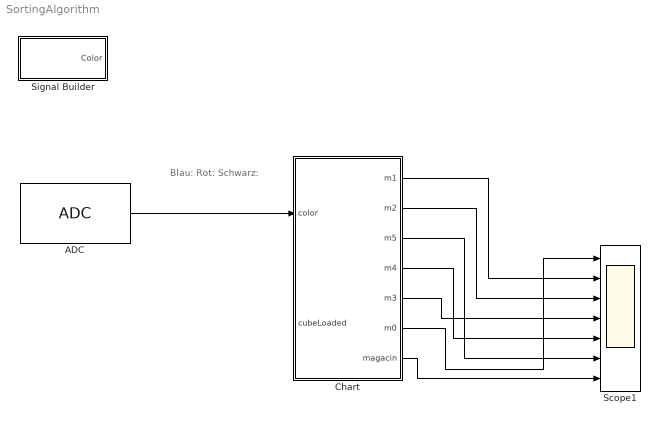
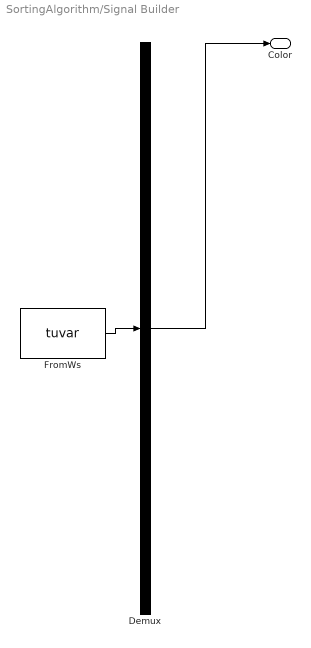
== stateflow chart SortingAlgorithm/Chart ==
  state setupVariable
    m0 = 0;
    m1 = 0;
    m2 = 0;
    m3 = 0;
    m4 = 0;
    m5 = 0;
    m6 = 0;
    magacin = 0;
    m0_LC = 0;
    m1_LC = 0;
    m2_LC = 0;
    m3_LC = 0;
    m4_LC = 0;
    m5_LC = 0;
    m6_LC = 0;
    magacin = -1;
  note: Motor fahre Position Mitte an
  state noCubeLoaded
  note: 1 ist Code for Blue, 2 is Code for Red, 3 is Code for Black, 0 is empty
  state cubeLoaded
  state findPlaceForRed1
    m1 = m1 + 1;
    magacin = 2;
  state RedCube
    magacin = findPlaceForRed();
  state BlueCube
    magacin = findPlaceForBlue()
  setupVariable -> noCubeLoaded
  (default) -> setupVariable
  BlueCube -> noCubeLoaded
  RedCube -> noCubeLoaded
  noCubeLoaded -> cubeLoaded
  cubeLoaded -> findPlaceForRed1 [order 3] : [(color > 2000 & color < 2200)]
  cubeLoaded -> RedCube [order 2] : [(color > 150 & color < 250)]
  cubeLoaded -> BlueCube [order 1] : [(color > 1800 & color < 1950) ]
  data: magacinOut function_output; magacinOut function_output; color input; cubeLoaded input; m6 local; m0_LC local; m3_LC local; m2_LC local; m5_LC local; m1_LC local; m6_LC local; m4_LC local; m1 output; m2 output; m5 output; m4 output; m3 output; m0 output; magacin output
  function magacinOut  = findPlaceForRed:
    | function magacinOut  = findPlaceForRed
    | 
    | %1 ist Code for Blue, 2 is Code for Red, 3 is Code for Black, 0 is empty
    | if((m1 == 0 || m1_LC == 1)&& m1 < 5) 
    |             magacinOut = 1;
    |             m1 = m1 + 1;
    |             m1_LC = 2;
    | elseif (m2 == 0 || (m2_LC == 1 && m2 < 5))
    |             magacinOut = 2;
    |             m2 = m2 + 1; 
    |             m2_LC = 2;
    | elseif (m0 < 5 && m1 > 0)
    |             magacinOut = 0;
    |             m0 = m0 + 1;
    |             m0_LC = 2;
    | else 
    |             magacinOut = 3;
    |             m3 = m3 + 1;
    |             m3_LC = 2;
    | end
  function magacinOut  = findPlaceForBlue:
    | function magacinOut  = findPlaceForBlue
    | 
    | %1 ist Code for Blue, 2 is Code for Red, 3 is Code for Black, 0 is empty
    | if(m0 == 0) 
    |             magacinOut = 0;
    |             m0 = m0 + 1;
    |             m0_LC = 1;
    | elseif (m2 == 0) || (m2_LC == 2 && m2 < 5)
    |             magacinOut = 2;
    |             m2 = m2 + 1; 
    |             m2_LC = 1;
    | elseif (m1_LC == 2 && m1 < 5)
    |             magacinOut = 1;
    |             m0 = m0 + 1;
    |             m0_LC = 1;
    | elseif m3 < 5
    |             magacinOut = 3;
    |             m3 = m3 + 1;
    | elseif m4 < 5
    |             magacinOut = 4;
    |             m4 = m4 + 1;
    | else
    |             magacinOut = 5;
    |             m5 = m5 + 1;
    | end

/*
 * Academic License - for use in teaching, academic research, and meeting
 * course requirements at degree granting institutions only.  Not for
 * government, commercial, or other organizational use.
 *
 * File: SortingAlgorithm.c
 *
 * Code generated for Simulink model 'SortingAlgorithm'.
 *
 * Model version                  : 1.16
 * Simulink Coder version         : 9.0 (R2018b) 24-May-2018
 * C/C++ source code generated on : Thu Dec 10 17:39:51 2020
 *
 * Target selection: ert.tlc
 * Embedded hardware selection: Texas Instruments->C2000
 * Code generation objectives: Unspecified
 * Validation result: Not run
 */

#include "SortingAlgorithm.h"
#include "SortingAlgorithm_private.h"
#define SortingAlgo_IN_findPlaceForRed1 (4U)
#define SortingAlgor_IN_NO_ACTIVE_CHILD (0U)
#define SortingAlgorit_IN_setupVariable (6U)
#define SortingAlgorith_IN_noCubeLoaded (5U)
#define SortingAlgorithm_IN_BlueCube   (1U)
#define SortingAlgorithm_IN_RedCube    (2U)
#define SortingAlgorithm_IN_cubeLoaded (3U)

/* Block signals (default storage) */
B_SortingAlgorithm_T SortingAlgorithm_B;

/* Block states (default storage) */
DW_SortingAlgorithm_T SortingAlgorithm_DW;

/* Real-time model */
RT_MODEL_SortingAlgorithm_T SortingAlgorithm_M_;
RT_MODEL_SortingAlgorithm_T *const SortingAlgorithm_M = &SortingAlgorithm_M_;

/* Forward declaration for local functions */
static real_T SortingAlgorith_findPlaceForRed(void);
static real_T SortingAlgorit_findPlaceForBlue(void);
static uint16_T adcInitFlag = 0;

/* Function for Chart: '<Root>/Chart' */
static real_T SortingAlgorith_findPlaceForRed(void)
{
  real_T magacinOut;
  if (((SortingAlgorithm_B.m1 == 0.0) || (SortingAlgorithm_DW.m1_LC == 1.0)) &&
      (SortingAlgorithm_B.m1 < 5.0)) {
    magacinOut = 1.0;
    SortingAlgorithm_B.m1++;
    SortingAlgorithm_DW.m1_LC = 2.0;
  } else if ((SortingAlgorithm_B.m2 == 0.0) || ((SortingAlgorithm_DW.m2_LC ==
               1.0) && (SortingAlgorithm_B.m2 < 5.0))) {
    magacinOut = 2.0;
    SortingAlgorithm_B.m2++;
    SortingAlgorithm_DW.m2_LC = 2.0;
  } else if ((SortingAlgorithm_B.m0 < 5.0) && (SortingAlgorithm_B.m1 > 0.0)) {
    magacinOut = 0.0;
    SortingAlgorithm_B.m0++;
  } else {
    magacinOut = 3.0;
    SortingAlgorithm_B.m3++;
  }

  return magacinOut;
}

/* Function for Chart: '<Root>/Chart' */
static real_T SortingAlgorit_findPlaceForBlue(void)
{
  real_T magacinOut;
  if (SortingAlgorithm_B.m0 == 0.0) {
    magacinOut = 0.0;
    SortingAlgorithm_B.m0++;
  } else if ((SortingAlgorithm_B.m2 == 0.0) || ((SortingAlgorithm_DW.m2_LC ==
               2.0) && (SortingAlgorithm_B.m2 < 5.0))) {
    magacinOut = 2.0;
    SortingAlgorithm_B.m2++;
    SortingAlgorithm_DW.m2_LC = 1.0;
  } else if ((SortingAlgorithm_DW.m1_LC == 2.0) && (SortingAlgorithm_B.m1 < 5.0))
  {
    magacinOut = 1.0;
    SortingAlgorithm_B.m0++;
  } else if (SortingAlgorithm_B.m3 < 5.0) {
    magacinOut = 3.0;
    SortingAlgorithm_B.m3++;
  } else if (SortingAlgorithm_B.m4 < 5.0) {
    magacinOut = 4.0;
    SortingAlgorithm_B.m4++;
  } else {
    magacinOut = 5.0;
    SortingAlgorithm_B.m5++;
  }

  return magacinOut;
}

/* Model step function */
void SortingAlgorithm_step(void)
{
  /* S-Function (c280xadc): '<Root>/ADC' */
  {
    AdcRegs.ADCTRL2.bit.RST_SEQ1 = 1;  /* Reset SEQ1 module*/
    AdcRegs.ADCST.bit.INT_SEQ1_CLR = 1;/*clear INT sequencer*/
    AdcRegs.ADCTRL2.bit.SOC_SEQ1 = 1;  /* Software Trigger*/
    while (AdcRegs.ADCST.bit.INT_SEQ1 == 0) {
    }                                  /*Wait for Sequencer INT bit to clear */

    asm(" RPT #11 || NOP");
    SortingAlgorithm_B.ADC = (AdcRegs.ADCRESULT0) >> 4;
  }

  /* Chart: '<Root>/Chart' */
  if (SortingAlgorithm_DW.is_active_c3_SortingAlgorithm == 0U) {
    SortingAlgorithm_DW.is_active_c3_SortingAlgorithm = 1U;
    SortingAlgorithm_DW.is_c3_SortingAlgorithm = SortingAlgorit_IN_setupVariable;
    SortingAlgorithm_B.m0 = 0.0;
    SortingAlgorithm_B.m1 = 0.0;
    SortingAlgorithm_B.m2 = 0.0;
    SortingAlgorithm_B.m3 = 0.0;
    SortingAlgorithm_B.m4 = 0.0;
    SortingAlgorithm_B.m5 = 0.0;
    SortingAlgorithm_DW.m1_LC = 0.0;
    SortingAlgorithm_DW.m2_LC = 0.0;
  } else {
    switch (SortingAlgorithm_DW.is_c3_SortingAlgorithm) {
     case SortingAlgorithm_IN_BlueCube:
      SortingAlgorithm_DW.is_c3_SortingAlgorithm =
        SortingAlgorith_IN_noCubeLoaded;
      break;

     case SortingAlgorithm_IN_RedCube:
      SortingAlgorithm_DW.is_c3_SortingAlgorithm =
        SortingAlgorith_IN_noCubeLoaded;
      break;

     case SortingAlgorithm_IN_cubeLoaded:
      if ((SortingAlgorithm_B.ADC > 1800U) && (SortingAlgorithm_B.ADC < 1950U))
      {
        SortingAlgorithm_DW.is_c3_SortingAlgorithm =
          SortingAlgorithm_IN_BlueCube;
        SortingAlgorit_findPlaceForBlue();
      } else if ((SortingAlgorithm_B.ADC > 150U) && (SortingAlgorithm_B.ADC <
                  250U)) {
        SortingAlgorithm_DW.is_c3_SortingAlgorithm = SortingAlgorithm_IN_RedCube;
        SortingAlgorith_findPlaceForRed();
      } else {
        if ((SortingAlgorithm_B.ADC > 2000U) && (SortingAlgorithm_B.ADC < 2200U))
        {
          SortingAlgorithm_DW.is_c3_SortingAlgorithm =
            SortingAlgo_IN_findPlaceForRed1;
          SortingAlgorithm_B.m1++;
        }
      }
      break;

     case SortingAlgo_IN_findPlaceForRed1:
      SortingAlgorithm_B.m1++;
      break;

     case SortingAlgorith_IN_noCubeLoaded:
      SortingAlgorithm_DW.is_c3_SortingAlgorithm =
        SortingAlgorithm_IN_cubeLoaded;
      break;

     default:
      SortingAlgorithm_DW.is_c3_SortingAlgorithm =
        SortingAlgorith_IN_noCubeLoaded;
      break;
    }
  }

  /* End of Chart: '<Root>/Chart' */

  /* Update absolute time for base rate */
  /* The "clockTick0" counts the number of times the code of this task has
   * been executed. The absolute time is the multiplication of "clockTick0"
   * and "Timing.stepSize0". Size of "clockTick0" ensures timer will not
   * overflow during the application lifespan selected.
   */
  SortingAlgorithm_M->Timing.t[0] =
    (++SortingAlgorithm_M->Timing.clockTick0) *
    SortingAlgorithm_M->Timing.stepSize0;

  {
    /* Update absolute timer for sample time: [0.001s, 0.0s] */
    /* The "clockTick1" counts the number of times the code of this task has
     * been executed. The resolution of this integer timer is 0.001, which is the step size
     * of the task. Size of "clockTick1" ensures timer will not overflow during the
     * application lifespan selected.
     */
    SortingAlgorithm_M->Timing.clockTick1++;
  }
}
